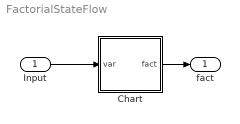
== stateflow chart FactorialStateFlow/Chart ==
  (default) -> (junction 8)
  (junction 8) -> (junction 10) : {fact=1; counter=var;}
  (junction 10) -> (junction 9) [order 1] : [counter>1]
  (junction 12) -> (junction 10)
  (junction 9) -> (junction 11) : {fact=fact*counter}
  (junction 10) -> (junction 13) [order 2]
  (junction 11) -> (junction 12) : {counter = counter - 1;}
  data: var input uint8; fact output uint32; counter local uint8

/*
 * File: FactorialStateFlow.c
 *
 * Code generated for Simulink model 'FactorialStateFlow'.
 *
 * Model version                  : 1.3
 * Simulink Coder version         : 9.3 (R2020a) 18-Nov-2019
 * C/C++ source code generated on : Wed Mar 30 15:46:18 2022
 *
 * Target selection: ert.tlc
 * Embedded hardware selection: Intel->x86-64 (Windows64)
 * Code generation objectives: Unspecified
 * Validation result: Not run
 */

#include "FactorialStateFlow.h"
#include "FactorialStateFlow_private.h"

/* External inputs (root inport signals with default storage) */
ExtU_FactorialStateFlow_T FactorialStateFlow_U;

/* External outputs (root outports fed by signals with default storage) */
ExtY_FactorialStateFlow_T FactorialStateFlow_Y;

/* Real-time model */
RT_MODEL_FactorialStateFlow_T FactorialStateFlow_M_;
RT_MODEL_FactorialStateFlow_T *const FactorialStateFlow_M =
  &FactorialStateFlow_M_;
void mul_wide_u32(uint32_T in0, uint32_T in1, uint32_T *ptrOutBitsHi, uint32_T
                  *ptrOutBitsLo)
{
  uint32_T outBitsLo;
  uint32_T in0Lo;
  uint32_T in0Hi;
  uint32_T in1Lo;
  uint32_T in1Hi;
  uint32_T productHiLo;
  uint32_T productLoHi;
  in0Hi = in0 >> 16U;
  in0Lo = in0 & 65535U;
  in1Hi = in1 >> 16U;
  in1Lo = in1 & 65535U;
  productHiLo = in0Hi * in1Lo;
  productLoHi = in0Lo * in1Hi;
  in0Lo *= in1Lo;
  in1Lo = 0U;
  outBitsLo = (productLoHi << /*MW:OvBitwiseOk*/ 16U) + /*MW:OvCarryOk*/ in0Lo;
  if (outBitsLo < in0Lo) {
    in1Lo = 1U;
  }

  in0Lo = outBitsLo;
  outBitsLo += /*MW:OvCarryOk*/ productHiLo << /*MW:OvBitwiseOk*/ 16U;
  if (outBitsLo < in0Lo) {
    in1Lo++;
  }

  *ptrOutBitsHi = (((productLoHi >> 16U) + (productHiLo >> 16U)) + in0Hi * in1Hi)
    + in1Lo;
  *ptrOutBitsLo = outBitsLo;
}

uint32_T mul_u32_sat(uint32_T a, uint32_T b)
{
  uint32_T result;
  uint32_T u32_chi;
  mul_wide_u32(a, b, &u32_chi, &result);
  if (u32_chi) {
    result = MAX_uint32_T;
  }

  return result;
}

/* Model step function */
void FactorialStateFlow_step(void)
{
  uint8_T counter;

  /* Chart: '<Root>/Chart' incorporates:
   *  Inport: '<Root>/Input'
   */
  FactorialStateFlow_Y.fact = 1U;
  for (counter = FactorialStateFlow_U.Input; counter > 1; counter--) {
    /* NEW_PATTERN */
    FactorialStateFlow_Y.fact = mul_u32_sat(FactorialStateFlow_Y.fact, counter);
  }

  /* End of Chart: '<Root>/Chart' */
}
